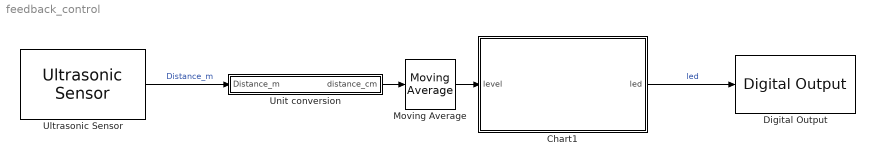
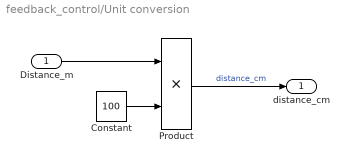
== stateflow chart feedback_control/Chart1 ==
  state BLINK_OUTRANGE
    frequency = 0.5;
    state LED_OFF
      entry:
      led = false;
    state LED_ON
      entry:
      led = true;
    (default) -> BLINK_OUTRANGE.LED_ON
    BLINK_OUTRANGE.LED_ON -> BLINK_OUTRANGE.LED_OFF : after(frequency/2, sec)
    BLINK_OUTRANGE.LED_OFF -> BLINK_OUTRANGE.LED_ON : after(frequency/2, sec)
  state BLINK_INRANGE
    frequency = 0.1;
    state LED_OFF
      entry:
      led = false;
    state LED_ON
      entry:
      led = true;
    (default) -> BLINK_INRANGE.LED_ON
    BLINK_INRANGE.LED_OFF -> BLINK_INRANGE.LED_ON : after(frequency - ((level*frequency)/100), sec)
    BLINK_INRANGE.LED_ON -> BLINK_INRANGE.LED_OFF : after((level*frequency)/100, sec)
  state DISCONNECTED_SENSOR
    frequency = 1;
    state LED_OFF
      entry:
      led = false;
    state LED_ON
      entry:
      led = true;
    (default) -> DISCONNECTED_SENSOR.LED_ON
    DISCONNECTED_SENSOR.LED_ON -> DISCONNECTED_SENSOR.LED_OFF : after(frequency/2, sec)
    DISCONNECTED_SENSOR.LED_OFF -> DISCONNECTED_SENSOR.LED_ON : after(frequency/2, sec)
  BLINK_OUTRANGE -> BLINK_INRANGE [order 1] : [level >=10 && level <=100]
  BLINK_INRANGE -> BLINK_OUTRANGE : [level < 10 || level >100]
  (default) -> DISCONNECTED_SENSOR
  (junction 156) -> BLINK_OUTRANGE
  BLINK_OUTRANGE -> (junction 136) [order 2] : [level == 0]
  (junction 174) -> BLINK_INRANGE
  (junction 136) -> DISCONNECTED_SENSOR
  DISCONNECTED_SENSOR -> (junction 174) [order 2] : [level >=10 && level <=100]
  DISCONNECTED_SENSOR -> (junction 156) [order 1] : [level ~= 0 && ( level < 10 || level > 100 )]
  data: led output boolean; frequency local single; level input double

/*
 * Academic License - for use in teaching, academic research, and meeting
 * course requirements at degree granting institutions only.  Not for
 * government, commercial, or other organizational use.
 *
 * File: feedback_control.c
 *
 * Code generated for Simulink model 'feedback_control'.
 *
 * Model version                  : 1.130
 * Simulink Coder version         : 9.4 (R2020b) 29-Jul-2020
 * C/C++ source code generated on : Tue Jun 22 12:53:43 2021
 *
 * Target selection: ert.tlc
 * Embedded hardware selection: Atmel->AVR
 * Code generation objectives: Unspecified
 * Validation result: Not run
 */

#include "feedback_control.h"
#include "feedback_control_private.h"

/* Named constants for Chart: '<Root>/Chart1' */
#define feedback_IN_DISCONNECTED_SENSOR ((uint8_T)3U)
#define feedback_con_IN_NO_ACTIVE_CHILD ((uint8_T)0U)
#define feedback_cont_IN_BLINK_OUTRANGE ((uint8_T)2U)
#define feedback_contr_IN_BLINK_INRANGE ((uint8_T)1U)
#define feedback_control_IN_LED_OFF    ((uint8_T)1U)
#define feedback_control_IN_LED_ON     ((uint8_T)2U)

/* Block signals (default storage) */
BlockIO_feedback_control feedback_control_B;

/* Block states (default storage) */
D_Work_feedback_control feedback_control_DWork;

/* Real-time model */
static RT_MODEL_feedback_control feedback_control_M_;
RT_MODEL_feedback_control *const feedback_control_M = &feedback_control_M_;
static void rate_monotonic_scheduler(void);

/*
 * Set which subrates need to run this base step (base rate always runs).
 * This function must be called prior to calling the model step function
 * in order to "remember" which rates need to run this base step.  The
 * buffering of events allows for overlapping preemption.
 */
void feedback_control_SetEventsForThisBaseStep(boolean_T *eventFlags)
{
  /* Task runs when its counter is zero, computed via rtmStepTask macro */
  eventFlags[1] = ((boolean_T)rtmStepTask(feedback_control_M, 1));
}

/*
 *   This function updates active task flag for each subrate
 * and rate transition flags for tasks that exchange data.
 * The function assumes rate-monotonic multitasking scheduler.
 * The function must be called at model base rate so that
 * the generated code self-manages all its subrates and rate
 * transition flags.
 */
static void rate_monotonic_scheduler(void)
{
  /* Compute which subrates run during the next base time step.  Subrates
   * are an integer multiple of the base rate counter.  Therefore, the subtask
   * counter is reset when it reaches its limit (zero means run).
   */
  (feedback_control_M->Timing.TaskCounters.TID[1])++;
  if ((feedback_control_M->Timing.TaskCounters.TID[1]) > 99) {/* Sample time: [0.1s, 0.0s] */
    feedback_control_M->Timing.TaskCounters.TID[1] = 0;
  }
}

/* Model step function for TID0 */
void feedback_control_step0(void)      /* Sample time: [0.001s, 0.0s] */
{
  {                                    /* Sample time: [0.001s, 0.0s] */
    rate_monotonic_scheduler();
  }
}

/* Model step function for TID1 */
void feedback_control_step1(void)      /* Sample time: [0.1s, 0.0s] */
{
  g_dsp_private_SlidingWindowAver *obj;
  real_T csum;
  real_T cumRevIndex;
  real_T rtb_distance_cm;
  real_T z;
  uint32_T duration;
  boolean_T rtb_led;

  /* MATLABSystem: '<Root>/Ultrasonic Sensor' */
  if (feedback_control_DWork.obj_l.TunablePropsChanged) {
    feedback_control_DWork.obj_l.TunablePropsChanged = false;
  }

  MW_UltrasonicRead(&duration, 1, 4, 5, 10);

  /* Product: '<S2>/Product' incorporates:
   *  Constant: '<S2>/Constant'
   *  MATLABSystem: '<Root>/Ultrasonic Sensor'
   */
  rtb_distance_cm = ((((real_T)duration) * 0.000343) / 2.0) *
    feedback_control_P.Constant_Value;

  /* MATLABSystem: '<Root>/Moving Average' */
  if (feedback_control_DWork.obj.TunablePropsChanged) {
    feedback_control_DWork.obj.TunablePropsChanged = false;
  }

  obj = feedback_control_DWork.obj.pStatistic;
  if (obj->isInitialized != 1L) {
    obj->isSetupComplete = false;
    obj->isInitialized = 1L;
    obj->pCumSum = 0.0;
    obj->pCumSumRev[0] = 0.0;
    obj->pCumSumRev[1] = 0.0;
    obj->pCumSumRev[2] = 0.0;
    obj->pCumRevIndex = 1.0;
    obj->isSetupComplete = true;
    obj->pCumSum = 0.0;
    obj->pCumSumRev[0] = 0.0;
    obj->pCumSumRev[1] = 0.0;
    obj->pCumSumRev[2] = 0.0;
    obj->pCumRevIndex = 1.0;
  }

  cumRevIndex = obj->pCumRevIndex;
  csum = obj->pCumSum;
  feedback_control_B.csumrev[0] = obj->pCumSumRev[0];
  feedback_control_B.csumrev[1] = obj->pCumSumRev[1];
  feedback_control_B.csumrev[2] = obj->pCumSumRev[2];
  csum += rtb_distance_cm;
  z = feedback_control_B.csumrev[((int16_T)cumRevIndex) - 1] + csum;
  feedback_control_B.csumrev[((int16_T)cumRevIndex) - 1] = rtb_distance_cm;
  if (cumRevIndex != 3.0) {
    cumRevIndex++;
  } else {
    cumRevIndex = 1.0;
    csum = 0.0;
    feedback_control_B.csumrev[1] += feedback_control_B.csumrev[2];
    feedback_control_B.csumrev[0] += feedback_control_B.csumrev[1];
  }

  obj->pCumSum = csum;
  obj->pCumSumRev[0] = feedback_control_B.csumrev[0];
  obj->pCumSumRev[1] = feedback_control_B.csumrev[1];
  obj->pCumSumRev[2] = feedback_control_B.csumrev[2];
  obj->pCumRevIndex = cumRevIndex;
  rtb_distance_cm = z / 4.0;

  /* End of MATLABSystem: '<Root>/Moving Average' */

  /* Chart: '<Root>/Chart1' */
  if (feedback_control_DWork.temporalCounter_i1 < MAX_uint32_T) {
    feedback_control_DWork.temporalCounter_i1++;
  }

  /* Gateway: Chart1 */
  /* During: Chart1 */
  if (feedback_control_DWork.is_active_c1_feedback_control == 0U) {
    /* Entry: Chart1 */
    feedback_control_DWork.is_active_c1_feedback_control = 1U;

    /* Entry Internal: Chart1 */
    /* Transition: '<S1>:177' */
    feedback_control_DWork.is_c1_feedback_control =
      feedback_IN_DISCONNECTED_SENSOR;

    /* Entry 'DISCONNECTED_SENSOR': '<S1>:104' */
    /* Entry Internal 'DISCONNECTED_SENSOR': '<S1>:104' */
    /* Transition: '<S1>:167' */
    feedback_control_DWork.is_DISCONNECTED_SENSOR = feedback_control_IN_LED_ON;
    feedback_control_DWork.temporalCounter_i1 = 0UL;

    /* Entry 'LED_ON': '<S1>:144' */
    rtb_led = true;
  } else {
    switch (feedback_control_DWork.is_c1_feedback_control) {
     case feedback_contr_IN_BLINK_INRANGE:
      /* During 'BLINK_INRANGE': '<S1>:62' */
      if ((rtb_distance_cm < 10.0) || (rtb_distance_cm > 100.0)) {
        /* Transition: '<S1>:107' */
        /* Exit Internal 'BLINK_INRANGE': '<S1>:62' */
        feedback_control_DWork.is_BLINK_INRANGE =
          feedback_con_IN_NO_ACTIVE_CHILD;
        feedback_control_DWork.is_c1_feedback_control =
          feedback_cont_IN_BLINK_OUTRANGE;

        /* Entry 'BLINK_OUTRANGE': '<S1>:103' */
        /* Entry Internal 'BLINK_OUTRANGE': '<S1>:103' */
        /* Transition: '<S1>:166' */
        feedback_control_DWork.is_BLINK_OUTRANGE = feedback_control_IN_LED_ON;
        feedback_control_DWork.temporalCounter_i1 = 0UL;

        /* Entry 'LED_ON': '<S1>:115' */
        rtb_led = true;
      } else if (feedback_control_DWork.is_BLINK_INRANGE ==
                 feedback_control_IN_LED_OFF) {
        rtb_led = false;

        /* During 'LED_OFF': '<S1>:110' */
        if (feedback_control_DWork.temporalCounter_i1 >= ((0.1F - ((((real32_T)
                 rtb_distance_cm) * 0.1F) / 100.0F)) * 10.0F)) {
          /* Transition: '<S1>:113' */
          feedback_control_DWork.is_BLINK_INRANGE = feedback_control_IN_LED_ON;
          feedback_control_DWork.temporalCounter_i1 = 0UL;

          /* Entry 'LED_ON': '<S1>:108' */
          rtb_led = true;
        }
      } else {
        rtb_led = true;

        /* During 'LED_ON': '<S1>:108' */
        if (feedback_control_DWork.temporalCounter_i1 >= (((((real32_T)
                rtb_distance_cm) * 0.1F) / 100.0F) * 10.0F)) {
          /* Transition: '<S1>:111' */
          feedback_control_DWork.is_BLINK_INRANGE = feedback_control_IN_LED_OFF;
          feedback_control_DWork.temporalCounter_i1 = 0UL;

          /* Entry 'LED_OFF': '<S1>:110' */
          rtb_led = false;
        }
      }
      break;

     case feedback_cont_IN_BLINK_OUTRANGE:
      /* During 'BLINK_OUTRANGE': '<S1>:103' */
      if ((rtb_distance_cm >= 10.0) && (rtb_distance_cm <= 100.0)) {
        /* Transition: '<S1>:106' */
        /* Exit Internal 'BLINK_OUTRANGE': '<S1>:103' */
        feedback_control_DWork.is_BLINK_OUTRANGE =
          feedback_con_IN_NO_ACTIVE_CHILD;
        feedback_control_DWork.is_c1_feedback_control =
          feedback_contr_IN_BLINK_INRANGE;

        /* Entry 'BLINK_INRANGE': '<S1>:62' */
        /* Entry Internal 'BLINK_INRANGE': '<S1>:62' */
        /* Transition: '<S1>:125' */
        feedback_control_DWork.is_BLINK_INRANGE = feedback_control_IN_LED_ON;
        feedback_control_DWork.temporalCounter_i1 = 0UL;

        /* Entry 'LED_ON': '<S1>:108' */
        rtb_led = true;
      } else if (rtb_distance_cm == 0.0) {
        /* Transition: '<S1>:137' */
        /* Transition: '<S1>:138' */
        /* Exit Internal 'BLINK_OUTRANGE': '<S1>:103' */
        feedback_control_DWork.is_BLINK_OUTRANGE =
          feedback_con_IN_NO_ACTIVE_CHILD;
        feedback_control_DWork.is_c1_feedback_control =
          feedback_IN_DISCONNECTED_SENSOR;

        /* Entry 'DISCONNECTED_SENSOR': '<S1>:104' */
        /* Entry Internal 'DISCONNECTED_SENSOR': '<S1>:104' */
        /* Transition: '<S1>:167' */
        feedback_control_DWork.is_DISCONNECTED_SENSOR =
          feedback_control_IN_LED_ON;
        feedback_control_DWork.temporalCounter_i1 = 0UL;

        /* Entry 'LED_ON': '<S1>:144' */
        rtb_led = true;
      } else if (feedback_control_DWork.is_BLINK_OUTRANGE ==
                 feedback_control_IN_LED_OFF) {
        rtb_led = false;

        /* During 'LED_OFF': '<S1>:117' */
        if (feedback_control_DWork.temporalCounter_i1 >= 2.5F) {
          /* Transition: '<S1>:123' */
          feedback_control_DWork.is_BLINK_OUTRANGE = feedback_control_IN_LED_ON;
          feedback_control_DWork.temporalCounter_i1 = 0UL;

          /* Entry 'LED_ON': '<S1>:115' */
          rtb_led = true;
        }
      } else {
        rtb_led = true;

        /* During 'LED_ON': '<S1>:115' */
        if (feedback_control_DWork.temporalCounter_i1 >= 2.5F) {
          /* Transition: '<S1>:122' */
          feedback_control_DWork.is_BLINK_OUTRANGE = feedback_control_IN_LED_OFF;
          feedback_control_DWork.temporalCounter_i1 = 0UL;

          /* Entry 'LED_OFF': '<S1>:117' */
          rtb_led = false;
        }
      }
      break;

     default:
      /* During 'DISCONNECTED_SENSOR': '<S1>:104' */
      if ((rtb_distance_cm != 0.0) && ((rtb_distance_cm < 10.0) ||
           (rtb_distance_cm > 100.0))) {
        /* Transition: '<S1>:157' */
        /* Transition: '<S1>:173' */
        /* Exit Internal 'DISCONNECTED_SENSOR': '<S1>:104' */
        feedback_control_DWork.is_DISCONNECTED_SENSOR =
          feedback_con_IN_NO_ACTIVE_CHILD;
        feedback_control_DWork.is_c1_feedback_control =
          feedback_cont_IN_BLINK_OUTRANGE;

        /* Entry 'BLINK_OUTRANGE': '<S1>:103' */
        /* Entry Internal 'BLINK_OUTRANGE': '<S1>:103' */
        /* Transition: '<S1>:166' */
        feedback_control_DWork.is_BLINK_OUTRANGE = feedback_control_IN_LED_ON;
        feedback_control_DWork.temporalCounter_i1 = 0UL;

        /* Entry 'LED_ON': '<S1>:115' */
        rtb_led = true;
      } else if ((rtb_distance_cm >= 10.0) && (rtb_distance_cm <= 100.0)) {
        /* Transition: '<S1>:175' */
        /* Transition: '<S1>:176' */
        /* Exit Internal 'DISCONNECTED_SENSOR': '<S1>:104' */
        feedback_control_DWork.is_DISCONNECTED_SENSOR =
          feedback_con_IN_NO_ACTIVE_CHILD;
        feedback_control_DWork.is_c1_feedback_control =
          feedback_contr_IN_BLINK_INRANGE;

        /* Entry 'BLINK_INRANGE': '<S1>:62' */
        /* Entry Internal 'BLINK_INRANGE': '<S1>:62' */
        /* Transition: '<S1>:125' */
        feedback_control_DWork.is_BLINK_INRANGE = feedback_control_IN_LED_ON;
        feedback_control_DWork.temporalCounter_i1 = 0UL;

        /* Entry 'LED_ON': '<S1>:108' */
        rtb_led = true;
      } else if (feedback_control_DWork.is_DISCONNECTED_SENSOR ==
                 feedback_control_IN_LED_OFF) {
        rtb_led = false;

        /* During 'LED_OFF': '<S1>:147' */
        if (feedback_control_DWork.temporalCounter_i1 >= 5UL) {
          /* Transition: '<S1>:143' */
          feedback_control_DWork.is_DISCONNECTED_SENSOR =
            feedback_control_IN_LED_ON;
          feedback_control_DWork.temporalCounter_i1 = 0UL;

          /* Entry 'LED_ON': '<S1>:144' */
          rtb_led = true;
        }
      } else {
        rtb_led = true;

        /* During 'LED_ON': '<S1>:144' */
        if (feedback_control_DWork.temporalCounter_i1 >= 5UL) {
          /* Transition: '<S1>:146' */
          feedback_control_DWork.is_DISCONNECTED_SENSOR =
            feedback_control_IN_LED_OFF;
          feedback_control_DWork.temporalCounter_i1 = 0UL;

          /* Entry 'LED_OFF': '<S1>:147' */
          rtb_led = false;
        }
      }
      break;
    }
  }

  /* End of Chart: '<Root>/Chart1' */

  /* MATLABSystem: '<Root>/Digital Output' */
  writeDigitalPin(13, (uint8_T)rtb_led);
}
